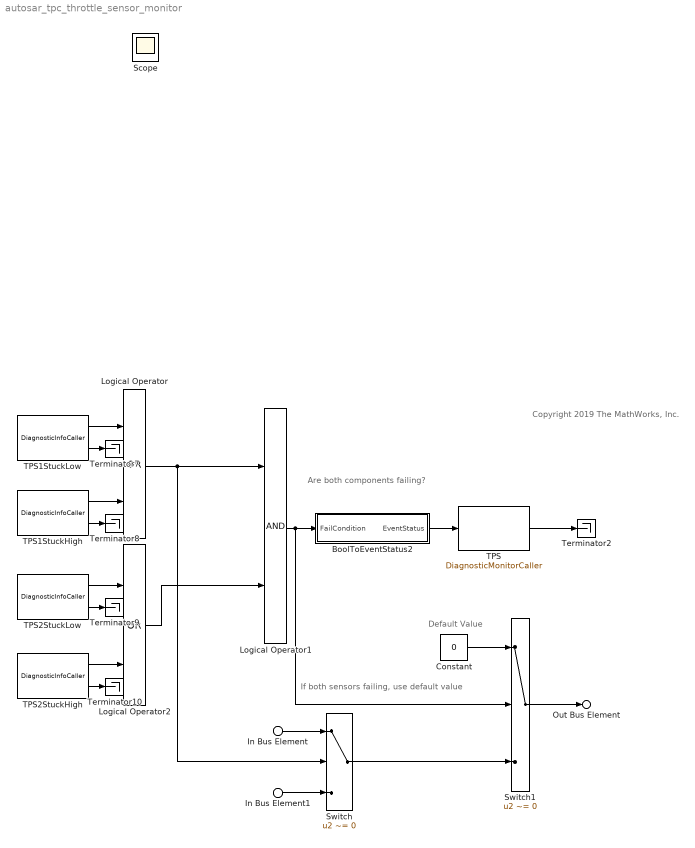
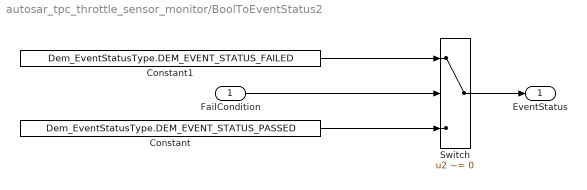
/*
 * Academic License - for use in teaching, academic research, and meeting
 * course requirements at degree granting institutions only.  Not for
 * government, commercial, or other organizational use.
 *
 * File: autosar_tpc_throttle_sensor_monitor.c
 *
 * Code generated for Simulink model 'autosar_tpc_throttle_sensor_monitor'.
 *
 * Model version                  : 5.1
 * Simulink Coder version         : 9.8 (R2022b) 13-May-2022
 * C/C++ source code generated on : Fri Nov 25 16:34:18 2022
 *
 * Target selection: autosar.tlc
 * Embedded hardware selection: Intel->x86-64 (Windows64)
 * Code generation objectives: Unspecified
 * Validation result: Not run
 */

#include "autosar_tpc_throttle_sensor_monitor.h"
#include "rtwtypes.h"
#include "Rte_Type.h"

/* Model step function */
void ThrottleSensorMonitor_Step(void)
{
  float32 rtb_Switch1;
  Dem_EventStatusType tmp;
  boolean rtb_LogicalOperator;
  boolean rtb_LogicalOperator1;
  boolean rtb_TPS2StuckHigh_o1;

  /* FunctionCaller: '<Root>/TPS1StuckLow' */
  Rte_Call_TPS1StuckLow_GetEventFailed(&rtb_TPS2StuckHigh_o1);

  /* FunctionCaller: '<Root>/TPS1StuckHigh' */
  Rte_Call_TPS1StuckHigh_GetEventFailed(&rtb_LogicalOperator1);

  /* Logic: '<Root>/Logical Operator' */
  rtb_LogicalOperator = (rtb_TPS2StuckHigh_o1 || rtb_LogicalOperator1);

  /* FunctionCaller: '<Root>/TPS2StuckLow' */
  Rte_Call_TPS2StuckLow_GetEventFailed(&rtb_LogicalOperator1);

  /* FunctionCaller: '<Root>/TPS2StuckHigh' */
  Rte_Call_TPS2StuckHigh_GetEventFailed(&rtb_TPS2StuckHigh_o1);

  /* Logic: '<Root>/Logical Operator1' incorporates:
   *  Logic: '<Root>/Logical Operator2'
   */
  rtb_LogicalOperator1 = (rtb_LogicalOperator && (rtb_LogicalOperator1 ||
    rtb_TPS2StuckHigh_o1));

  /* Switch: '<Root>/Switch1' incorporates:
   *  Constant: '<S1>/Constant'
   *  Constant: '<S1>/Constant1'
   *  Switch: '<Root>/Switch'
   *  Switch: '<S1>/Switch'
   */
  if (rtb_LogicalOperator1) {
    /* Switch: '<Root>/Switch1' incorporates:
     *  Constant: '<Root>/Constant'
     */
    rtb_Switch1 = 0.0F;
    tmp = DEM_EVENT_STATUS_FAILED;
  } else {
    if (rtb_LogicalOperator) {
      /* Switch: '<Root>/Switch' incorporates:
       *  Inport generated from: '<Root>/In Bus Element'
       *  Switch: '<Root>/Switch1'
       */
      rtb_Switch1 = Rte_IRead_ThrottleSensorMonitor_Step_TPS_Secondary_Value();
    } else {
      /* Switch: '<Root>/Switch1' incorporates:
       *  Inport generated from: '<Root>/In Bus Element1'
       *  Switch: '<Root>/Switch'
       */
      rtb_Switch1 = Rte_IRead_ThrottleSensorMonitor_Step_TPS_Primary_Value();
    }

    tmp = DEM_EVENT_STATUS_PASSED;
  }

  /* End of Switch: '<Root>/Switch1' */

  /* FunctionCaller: '<Root>/TPS' */
  Rte_Call_TPS_SetEventStatus(tmp);

  /* Outport generated from: '<Root>/Out Bus Element' */
  Rte_IWrite_ThrottleSensorMonitor_Step_TPS_Percent_Value(rtb_Switch1);
}
